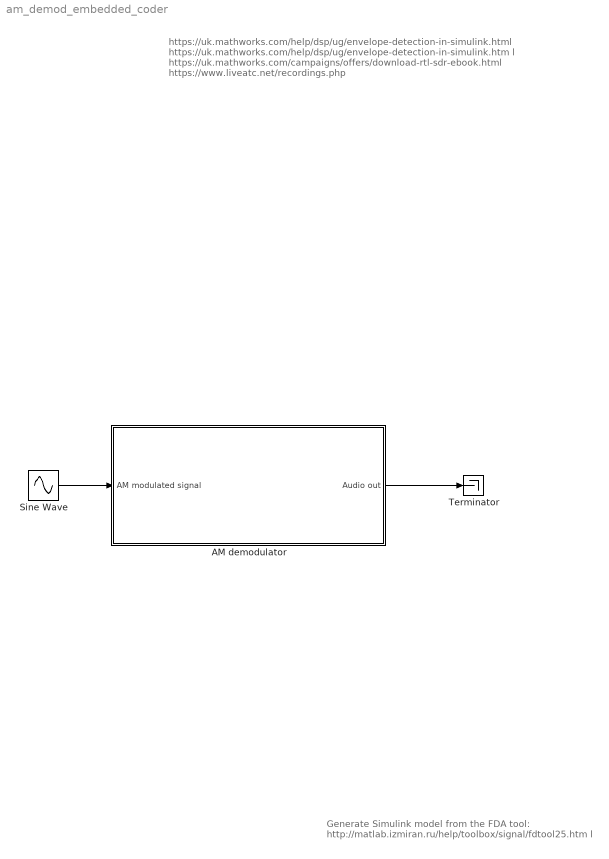
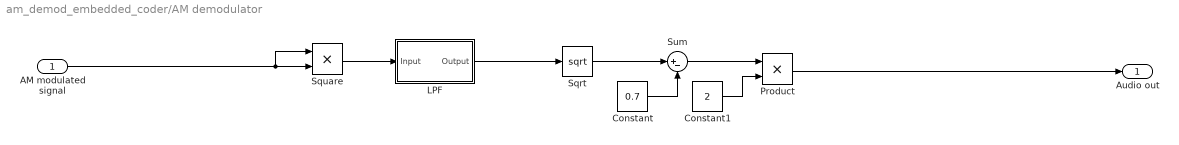
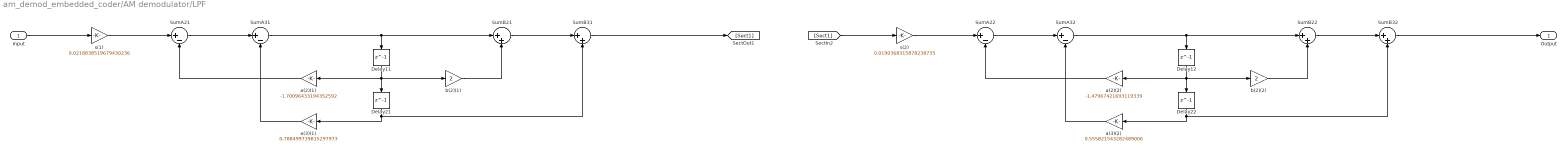
/*
 * File: am_demod_embedded_coder.c
 *
 * Code generated for Simulink model 'am_demod_embedded_coder'.
 *
 * Model version                  : 1.247
 * Simulink Coder version         : 9.6 (R2021b) 14-May-2021
 * C/C++ source code generated on : Wed Jan  1 15:47:44 2025
 *
 * Target selection: ert.tlc
 * Embedded hardware selection: ARM Compatible->ARM Cortex
 * Code generation objectives: Unspecified
 * Validation result: Not run
 */

#include "am_demod_embedded_coder.h"
#include "am_demod_embedded_coder_private.h"

/* Block states (default storage) */
DW_am_demod_embedded_coder_T am_demod_embedded_coder_DW;

/* Real-time model */
static RT_MODEL_am_demod_embedded_co_T am_demod_embedded_coder_M_;
RT_MODEL_am_demod_embedded_co_T *const am_demod_embedded_coder_M =
  &am_demod_embedded_coder_M_;

/* Model step function */
void am_demod_embedded_coder_step(void)
{
  real_T lastSin_tmp;
  real_T rtb_Delay12;
  real_T rtb_Product;
  real_T rtb_Sqrt;

  /* Sin: '<Root>/Sine Wave' */
  if (am_demod_embedded_coder_DW.systemEnable != 0) {
    lastSin_tmp = 1.0 * (((am_demod_embedded_coder_M->Timing.clockTick0+
      am_demod_embedded_coder_M->Timing.clockTickH0* 4294967296.0)) * 1.0E-6);
    am_demod_embedded_coder_DW.lastSin = sin(lastSin_tmp);
    am_demod_embedded_coder_DW.lastCos = cos(lastSin_tmp);
    am_demod_embedded_coder_DW.systemEnable = 0;
  }

  lastSin_tmp = am_demod_embedded_coder_DW.lastSin * 0.9999999999995;
  rtb_Sqrt = ((am_demod_embedded_coder_DW.lastCos * (-9.999999999998333E-7) +
               lastSin_tmp) * 0.9999999999995 +
              (am_demod_embedded_coder_DW.lastCos * 0.9999999999995 -
               am_demod_embedded_coder_DW.lastSin * (-9.999999999998333E-7)) *
              9.999999999998333E-7) * 1.0 + 0.0;

  /* End of Sin: '<Root>/Sine Wave' */

  /* Sum: '<S2>/SumA31' incorporates:
   *  Delay: '<S2>/Delay11'
   *  Delay: '<S2>/Delay21'
   *  Gain: '<S2>/a(2)(1)'
   *  Gain: '<S2>/a(3)(1)'
   *  Gain: '<S2>/s(1)'
   *  Product: '<S1>/Square'
   *  Sum: '<S2>/SumA21'
   */
  rtb_Sqrt = (rtb_Sqrt * rtb_Sqrt * 0.021883851967943024 - (-1.7009643319435259)
              * am_demod_embedded_coder_DW.Delay11_DSTATE) - 0.788499739815298 *
    am_demod_embedded_coder_DW.Delay21_DSTATE;

  /* Delay: '<S2>/Delay12' */
  rtb_Delay12 = am_demod_embedded_coder_DW.Delay12_DSTATE;

  /* Sum: '<S2>/SumA32' incorporates:
   *  Delay: '<S2>/Delay11'
   *  Delay: '<S2>/Delay12'
   *  Delay: '<S2>/Delay21'
   *  Delay: '<S2>/Delay22'
   *  Gain: '<S2>/a(2)(2)'
   *  Gain: '<S2>/a(3)(2)'
   *  Gain: '<S2>/b(2)(1)'
   *  Gain: '<S2>/s(2)'
   *  Sum: '<S2>/SumA22'
   *  Sum: '<S2>/SumB21'
   *  Sum: '<S2>/SumB31'
   */
  am_demod_embedded_coder_DW.Delay12_DSTATE = (((2.0 *
    am_demod_embedded_coder_DW.Delay11_DSTATE + rtb_Sqrt) +
    am_demod_embedded_coder_DW.Delay21_DSTATE) * 0.019036831587823873 -
    (-1.4796742169311934) * am_demod_embedded_coder_DW.Delay12_DSTATE) -
    0.555821543282489 * am_demod_embedded_coder_DW.Delay22_DSTATE;

  /* Product: '<S1>/Product' incorporates:
   *  Constant: '<S1>/Constant'
   *  Constant: '<S1>/Constant1'
   *  Delay: '<S2>/Delay12'
   *  Delay: '<S2>/Delay22'
   *  Gain: '<S2>/b(2)(2)'
   *  Sqrt: '<S1>/Sqrt'
   *  Sum: '<S1>/Sum'
   *  Sum: '<S2>/SumB22'
   *  Sum: '<S2>/SumB32'
   */
  rtb_Product = (sqrt((2.0 * rtb_Delay12 +
                       am_demod_embedded_coder_DW.Delay12_DSTATE) +
                      am_demod_embedded_coder_DW.Delay22_DSTATE) - 0.7) * 2.0;

  /* Update for Delay: '<S2>/Delay22' */
  am_demod_embedded_coder_DW.Delay22_DSTATE = rtb_Delay12;

  /* Update for Delay: '<S2>/Delay21' incorporates:
   *  Delay: '<S2>/Delay11'
   */
  am_demod_embedded_coder_DW.Delay21_DSTATE =
    am_demod_embedded_coder_DW.Delay11_DSTATE;

  /* Update for Sin: '<Root>/Sine Wave' */
  rtb_Delay12 = am_demod_embedded_coder_DW.lastSin;
  am_demod_embedded_coder_DW.lastSin = am_demod_embedded_coder_DW.lastCos *
    9.999999999998333E-7 + lastSin_tmp;
  am_demod_embedded_coder_DW.lastCos = am_demod_embedded_coder_DW.lastCos *
    0.9999999999995 - rtb_Delay12 * 9.999999999998333E-7;

  /* Update for Delay: '<S2>/Delay11' */
  am_demod_embedded_coder_DW.Delay11_DSTATE = rtb_Sqrt;

  /* Update absolute time for base rate */
  /* The "clockTick0" counts the number of times the code of this task has
   * been executed. The resolution of this integer timer is 1.0E-6, which is the step size
   * of the task. Size of "clockTick0" ensures timer will not overflow during the
   * application lifespan selected.
   * Timer of this task consists of two 32 bit unsigned integers.
   * The two integers represent the low bits Timing.clockTick0 and the high bits
   * Timing.clockTickH0. When the low bit overflows to 0, the high bits increment.
   */
  am_demod_embedded_coder_M->Timing.clockTick0++;
  if (!am_demod_embedded_coder_M->Timing.clockTick0) {
    am_demod_embedded_coder_M->Timing.clockTickH0++;
  }
}
